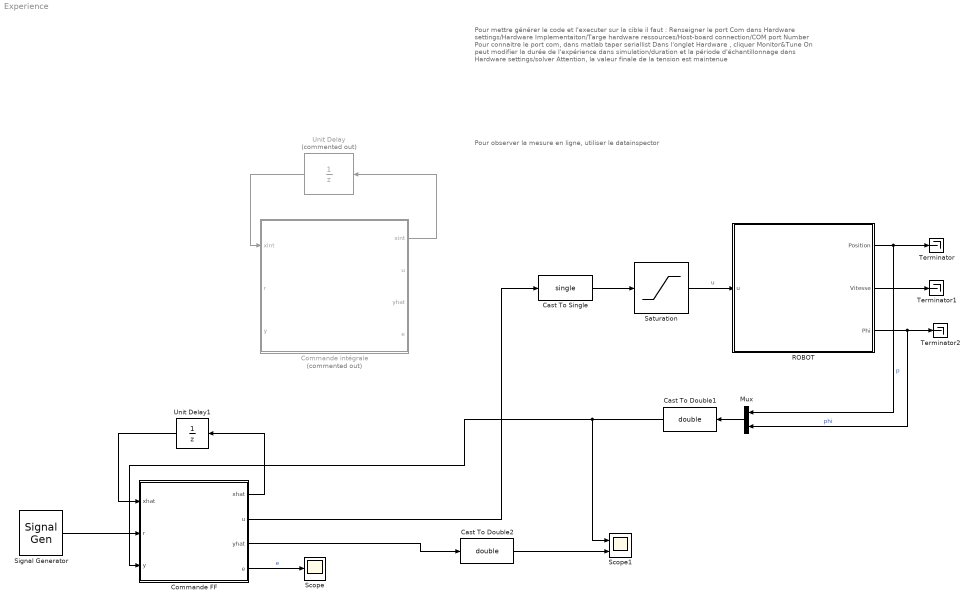
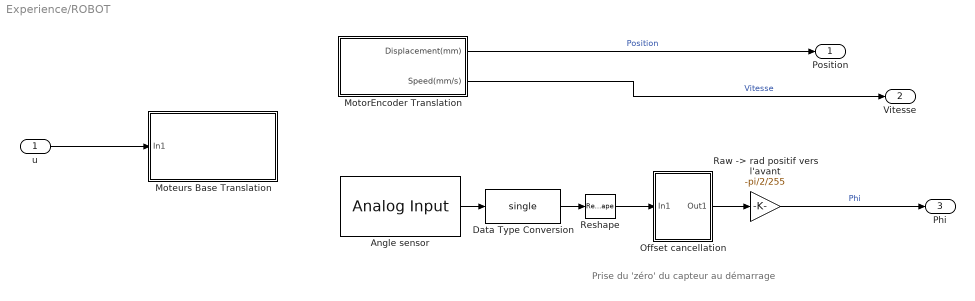
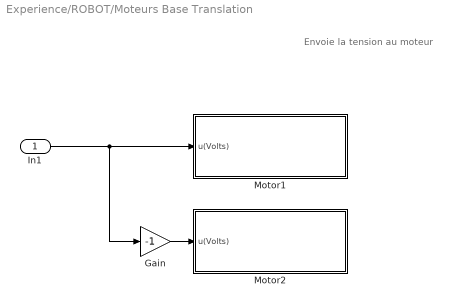
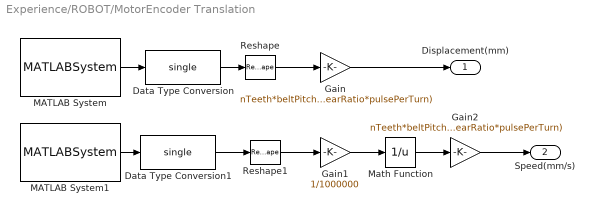
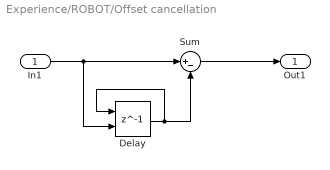
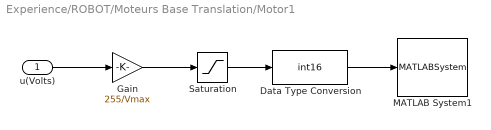
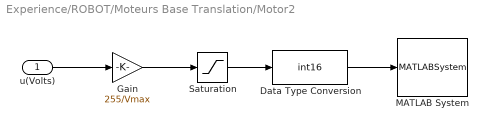
== matlab function Experience/Commande FF ==
function [xhat,u,yhat,e] = ControlFF(xhat,r,y,L, C, B, A, K, H)

z = y(1);
e = r-z;
u = -K*xhat+H*r; 

yhat = C*xhat;
xhat = A*xhat+B*u+L*(y-yhat);

== matlab function Experience/Commande intégrale ==
function [xint,u,yhat,e] = Control_Integrale(xint,r,y,Ka, L, C, B, A)

z = y(1);
xhat = xint(1:4);
eta = xint(5);
e = r-z;
u = -Ka*xint;
 
yhat = C*xhat;
xhat = A*xhat+B*u+L*(y-yhat);
eta = eta+e;
%eta = eta+e+Kb*(u_sat-u);
xint = [xhat;eta];

/*
 * Academic License - for use in teaching, academic research, and meeting
 * course requirements at degree granting institutions only.  Not for
 * government, commercial, or other organizational use.
 *
 * File: Experience.c
 *
 * Code generated for Simulink model 'Experience'.
 *
 * Model version                  : 13.0
 * Simulink Coder version         : 25.2 (R2025b) 28-Jul-2025
 * C/C++ source code generated on : Fri Apr 10 11:53:47 2026
 *
 * Target selection: ert.tlc
 * Embedded hardware selection: Atmel->AVR
 * Code generation objectives: Unspecified
 * Validation result: Not run
 */

#include "Experience.h"
#include <math.h>
#include "rt_nonfinite.h"
#include "rtwtypes.h"
#include "Experience_private.h"
#include <string.h>

/* Block signals (default storage) */
B_Experience_T Experience_B;

/* Block states (default storage) */
DW_Experience_T Experience_DW;

/* Real-time model */
static RT_MODEL_Experience_T Experience_M_;
RT_MODEL_Experience_T *const Experience_M = &Experience_M_;

/* Model step function */
void Experience_step(void)
{
  real_T rtb_SignalGenerator;
  int32_T rtb_MATLABSystem1_0;
  real32_T tmp[2];
  real32_T tmp_0;
  real32_T tmp_1;
  real32_T tmp_2;
  real32_T tmp_3;
  real32_T u0;
  real32_T xhat;
  real32_T y_idx_0;
  real32_T y_idx_1;
  int16_T rtb_MATLABSystem_0;
  int16_T y_idx_0_tmp;
  uint16_T b_varargout_1;
  boolean_T b;

  /* SignalGenerator: '<Root>/Signal Generator' */
  rtb_SignalGenerator = sin(6.2831853071795862 * Experience_M->Timing.t[0] *
    Experience_P.SignalGenerator_Frequency) *
    Experience_P.SignalGenerator_Amplitude;

  /* MATLABSystem: '<S4>/MATLAB System' */
  if (Experience_DW.obj.SampleTime != Experience_P.MATLABSystem_SampleTime) {
    b = rtIsInf(Experience_P.MATLABSystem_SampleTime);
    if (((!b) && (!rtIsNaN(Experience_P.MATLABSystem_SampleTime))) || b) {
      Experience_B.sampleTime = Experience_P.MATLABSystem_SampleTime;
    }

    Experience_DW.obj.SampleTime = Experience_B.sampleTime;
  }

  /*         %% Define output properties */
  /*  Call C-function implementing device output */
  rtb_MATLABSystem_0 = EncPortRead1();

  /* Gain: '<S4>/Gain' incorporates:
   *  DataTypeConversion: '<S4>/Data Type Conversion'
   *  MATLABSystem: '<S4>/MATLAB System'
   */
  Experience_B.Gain = Experience_P.Gain_Gain * (real32_T)rtb_MATLABSystem_0;

  /* MATLABSystem: '<S2>/Angle sensor' */
  Experience_DW.obj_p.AnalogInDriverObj.MW_ANALOGIN_HANDLE =
    MW_AnalogIn_GetHandle(64UL);
  MW_AnalogInSingle_ReadResult
    (Experience_DW.obj_p.AnalogInDriverObj.MW_ANALOGIN_HANDLE, &b_varargout_1,
     MW_ANALOGIN_UINT16);

  /* Delay: '<S5>/Delay' incorporates:
   *  DataTypeConversion: '<S2>/Data Type Conversion'
   *  MATLABSystem: '<S2>/Angle sensor'
   * */
  if (Experience_DW.icLoad) {
    Experience_DW.Delay_DSTATE = b_varargout_1;
  }

  /* Delay: '<S5>/Delay' */
  Experience_B.Delay = Experience_DW.Delay_DSTATE;

  /* Gain: '<S2>/Raw -> rad positif vers l'avant' incorporates:
   *  DataTypeConversion: '<S2>/Data Type Conversion'
   *  MATLABSystem: '<S2>/Angle sensor'
   *  Sum: '<S5>/Sum'
   * */
  Experience_B.Phi = ((real32_T)b_varargout_1 - Experience_B.Delay) *
    Experience_P.Rawradpositifverslavant_Gain;

  /* DataTypeConversion: '<Root>/Cast To Double1' */
  Experience_B.CastToDouble1[0] = Experience_B.Gain;
  Experience_B.CastToDouble1[1] = Experience_B.Phi;

  /* MATLAB Function: '<Root>/Commande FF' incorporates:
   *  UnitDelay: '<Root>/Unit Delay1'
   */
  Experience_B.e = rtb_SignalGenerator - Experience_B.CastToDouble1[0];
  xhat = Experience_DW.UnitDelay1_DSTATE[0];
  Experience_B.xhat[0] = xhat;

  /* MATLAB Function: '<Root>/Commande FF' incorporates:
   *  UnitDelay: '<Root>/Unit Delay1'
   */
  u0 = (real32_T)-Experience_P.K[0] * xhat;
  xhat = Experience_DW.UnitDelay1_DSTATE[1];
  Experience_B.xhat[1] = xhat;

  /* MATLAB Function: '<Root>/Commande FF' incorporates:
   *  UnitDelay: '<Root>/Unit Delay1'
   */
  u0 += (real32_T)-Experience_P.K[1] * xhat;
  xhat = Experience_DW.UnitDelay1_DSTATE[2];
  Experience_B.xhat[2] = xhat;

  /* MATLAB Function: '<Root>/Commande FF' incorporates:
   *  UnitDelay: '<Root>/Unit Delay1'
   */
  u0 += (real32_T)-Experience_P.K[2] * xhat;
  xhat = Experience_DW.UnitDelay1_DSTATE[3];
  Experience_B.xhat[3] = xhat;

  /* MATLAB Function: '<Root>/Commande FF' */
  xhat = ((real32_T)-Experience_P.K[3] * xhat + u0) + (real32_T)(Experience_P.H *
    rtb_SignalGenerator);
  y_idx_0 = 0.0F;
  y_idx_1 = 0.0F;
  for (rtb_MATLABSystem_0 = 0; rtb_MATLABSystem_0 < 4; rtb_MATLABSystem_0++) {
    u0 = Experience_B.xhat[rtb_MATLABSystem_0];
    y_idx_0_tmp = rtb_MATLABSystem_0 << 1;
    y_idx_0 += (real32_T)Experience_P.C[y_idx_0_tmp] * u0;
    y_idx_1 += (real32_T)Experience_P.C[y_idx_0_tmp + 1] * u0;
    Experience_B.fv[rtb_MATLABSystem_0] = ((((real32_T)
      Experience_P.A[rtb_MATLABSystem_0 + 4] * Experience_B.xhat[1] + (real32_T)
      Experience_P.A[rtb_MATLABSystem_0] * Experience_B.xhat[0]) + (real32_T)
      Experience_P.A[rtb_MATLABSystem_0 + 8] * Experience_B.xhat[2]) + (real32_T)
      Experience_P.A[rtb_MATLABSystem_0 + 12] * Experience_B.xhat[3]) +
      (real32_T)Experience_P.B[rtb_MATLABSystem_0] * xhat;
  }

  tmp[0] = (real32_T)Experience_B.CastToDouble1[0] - y_idx_0;
  tmp[1] = (real32_T)Experience_B.CastToDouble1[1] - y_idx_1;
  u0 = 0.0F;
  tmp_1 = 0.0F;
  tmp_2 = 0.0F;
  tmp_3 = 0.0F;
  for (rtb_MATLABSystem_0 = 0; rtb_MATLABSystem_0 < 2; rtb_MATLABSystem_0++) {
    tmp_0 = tmp[rtb_MATLABSystem_0];
    y_idx_0_tmp = rtb_MATLABSystem_0 << 2;
    u0 += (real32_T)Experience_P.L[y_idx_0_tmp] * tmp_0;
    tmp_1 += (real32_T)Experience_P.L[y_idx_0_tmp + 1] * tmp_0;
    tmp_2 += (real32_T)Experience_P.L[y_idx_0_tmp + 2] * tmp_0;
    tmp_3 += (real32_T)Experience_P.L[y_idx_0_tmp + 3] * tmp_0;
  }

  Experience_B.xhat[0] = Experience_B.fv[0] + u0;
  Experience_B.xhat[1] = Experience_B.fv[1] + tmp_1;
  Experience_B.xhat[2] = Experience_B.fv[2] + tmp_2;
  Experience_B.xhat[3] = Experience_B.fv[3] + tmp_3;

  /* DataTypeConversion: '<Root>/Cast To Double2' incorporates:
   *  MATLAB Function: '<Root>/Commande FF'
   */
  Experience_B.CastToDouble2[0] = y_idx_0;
  Experience_B.CastToDouble2[1] = y_idx_1;

  /* Saturate: '<Root>/Saturation' incorporates:
   *  MATLAB Function: '<Root>/Commande FF'
   */
  if (xhat > Experience_P.Saturation_UpperSat) {
    /* Saturate: '<Root>/Saturation' */
    Experience_B.u = Experience_P.Saturation_UpperSat;
  } else if (xhat < Experience_P.Saturation_LowerSat) {
    /* Saturate: '<Root>/Saturation' */
    Experience_B.u = Experience_P.Saturation_LowerSat;
  } else {
    /* Saturate: '<Root>/Saturation' */
    Experience_B.u = xhat;
  }

  /* End of Saturate: '<Root>/Saturation' */
  /* MATLABSystem: '<S4>/MATLAB System1' */
  if (Experience_DW.obj_g.SampleTime != Experience_P.MATLABSystem1_SampleTime) {
    b = rtIsInf(Experience_P.MATLABSystem1_SampleTime);
    if (((!b) && (!rtIsNaN(Experience_P.MATLABSystem1_SampleTime))) || b) {
      Experience_B.sampleTime_m = Experience_P.MATLABSystem1_SampleTime;
    }

    Experience_DW.obj_g.SampleTime = Experience_B.sampleTime_m;
  }

  /*         %% Define output properties */
  /*  Call C-function implementing device output */
  rtb_MATLABSystem1_0 = EncPeriodRead1();

  /* Gain: '<S4>/Gain2' incorporates:
   *  DataTypeConversion: '<S4>/Data Type Conversion1'
   *  Gain: '<S4>/Gain1'
   *  MATLABSystem: '<S4>/MATLAB System1'
   *  Math: '<S4>/Math Function'
   *
   * About '<S4>/Math Function':
   *  Operator: reciprocal
   */
  Experience_B.Gain2 = 1.0F / (Experience_P.Gain1_Gain * (real32_T)
    rtb_MATLABSystem1_0) * Experience_P.Gain2_Gain;

  /* Gain: '<S6>/Gain' */
  /*         %% Define input properties */
  /*  Call C-function implementing device output */
  u0 = Experience_P.Gain_Gain_i * Experience_B.u;

  /* Saturate: '<S6>/Saturation' */
  if (u0 > Experience_P.Saturation_UpperSat_l) {
    u0 = Experience_P.Saturation_UpperSat_l;
  } else if (u0 < Experience_P.Saturation_LowerSat_o) {
    u0 = Experience_P.Saturation_LowerSat_o;
  }

  /* DataTypeConversion: '<S6>/Data Type Conversion' incorporates:
   *  Saturate: '<S6>/Saturation'
   */
  u0 = (real32_T)floor(u0);
  if (rtIsNaNF(u0) || rtIsInfF(u0)) {
    u0 = 0.0F;
  } else {
    u0 = (real32_T)fmod(u0, 65536.0);
  }

  /* MATLABSystem: '<S6>/MATLAB System1' incorporates:
   *  DataTypeConversion: '<S6>/Data Type Conversion'
   */
  DCMotor1Set(u0 < 0.0F ? -(int16_T)(uint16_T)-u0 : (int16_T)(uint16_T)u0);

  /* Gain: '<S7>/Gain' incorporates:
   *  Gain: '<S3>/Gain'
   */
  /*         %% Define input properties */
  /*  Call C-function implementing device output */
  u0 = Experience_P.Gain_Gain_k * Experience_B.u * Experience_P.Gain_Gain_o;

  /* Saturate: '<S7>/Saturation' */
  if (u0 > Experience_P.Saturation_UpperSat_a) {
    u0 = Experience_P.Saturation_UpperSat_a;
  } else if (u0 < Experience_P.Saturation_LowerSat_b) {
    u0 = Experience_P.Saturation_LowerSat_b;
  }

  /* DataTypeConversion: '<S7>/Data Type Conversion' incorporates:
   *  Saturate: '<S7>/Saturation'
   */
  u0 = (real32_T)floor(u0);
  if (rtIsNaNF(u0) || rtIsInfF(u0)) {
    u0 = 0.0F;
  } else {
    u0 = (real32_T)fmod(u0, 65536.0);
  }

  /* MATLABSystem: '<S7>/MATLAB System' incorporates:
   *  DataTypeConversion: '<S7>/Data Type Conversion'
   */
  DCMotor2Set(u0 < 0.0F ? -(int16_T)(uint16_T)-u0 : (int16_T)(uint16_T)u0);

  /* Update for UnitDelay: '<Root>/Unit Delay1' */
  Experience_DW.UnitDelay1_DSTATE[0] = Experience_B.xhat[0];
  Experience_DW.UnitDelay1_DSTATE[1] = Experience_B.xhat[1];
  Experience_DW.UnitDelay1_DSTATE[2] = Experience_B.xhat[2];
  Experience_DW.UnitDelay1_DSTATE[3] = Experience_B.xhat[3];

  /* Update for Delay: '<S5>/Delay' */
  Experience_DW.icLoad = false;
  Experience_DW.Delay_DSTATE = Experience_B.Delay;

  {                                    /* Sample time: [0.005s, 0.0s] */
    extmodeErrorCode_T errorCode = EXTMODE_SUCCESS;
    extmodeSimulationTime_T extmodeTime = (extmodeSimulationTime_T)
      ((Experience_M->Timing.clockTick1 * 1) + 0);

    /* Trigger External Mode event */
    errorCode = extmodeEvent(1, extmodeTime);
    if (errorCode != EXTMODE_SUCCESS) {
      /* Code to handle External Mode event errors
         may be added here */
    }
  }

  /* Update absolute time for base rate */
  /* The "clockTick0" counts the number of times the code of this task has
   * been executed. The absolute time is the multiplication of "clockTick0"
   * and "Timing.stepSize0". Size of "clockTick0" ensures timer will not
   * overflow during the application lifespan selected.
   */
  Experience_M->Timing.t[0] =
    ((time_T)(++Experience_M->Timing.clockTick0)) *
    Experience_M->Timing.stepSize0;

  {
    /* Update absolute timer for sample time: [0.005s, 0.0s] */
    /* The "clockTick1" counts the number of times the code of this task has
     * been executed. The resolution of this integer timer is 0.005, which is the step size
     * of the task. Size of "clockTick1" ensures timer will not overflow during the
     * application lifespan selected.
     */
    Experience_M->Timing.clockTick1++;
  }
}
